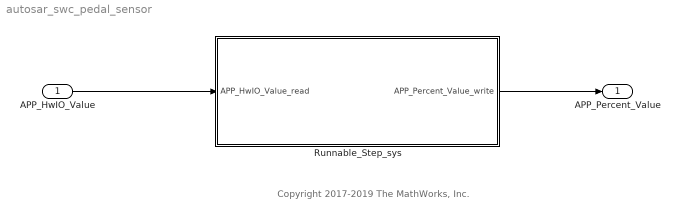
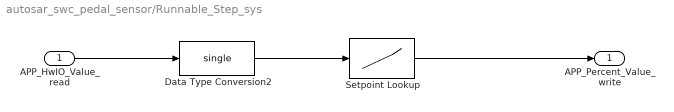
/*
 * File: autosar_swc_pedal_sensor.c
 *
 * Code generated for Simulink model 'autosar_swc_pedal_sensor'.
 *
 * Model version                  : 3.1
 * Simulink Coder version         : 9.5 (R2021a) 14-Nov-2020
 * C/C++ source code generated on : Thu Aug  7 15:22:16 2025
 *
 * Target selection: autosar.tlc
 * Embedded hardware selection: Intel->x86-64 (Windows64)
 * Code generation objectives: Unspecified
 * Validation result: Not run
 */

#include "autosar_swc_pedal_sensor.h"
#include "autosar_swc_pedal_sensor_private.h"

float32 look1_iflf_linlcpw(float32 u0, const float32 bp0[], const float32 table[],
  uint32 maxIndex)
{
  float32 frac;
  float32 yL_0d0;
  uint32 bpIdx;

  /* Column-major Lookup 1-D
     Search method: 'linear'
     Use previous index: 'off'
     Interpolation method: 'Linear point-slope'
     Extrapolation method: 'Clip'
     Use last breakpoint for index at or above upper limit: 'off'
     Remove protection against out-of-range input in generated code: 'off'
   */
  /* Prelookup - Index and Fraction
     Index Search method: 'linear'
     Extrapolation method: 'Clip'
     Use previous index: 'off'
     Use last breakpoint for index at or above upper limit: 'off'
     Remove protection against out-of-range input in generated code: 'off'
   */
  if (u0 <= bp0[0U]) {
    bpIdx = 0U;
    frac = 0.0F;
  } else if (u0 < bp0[maxIndex]) {
    /* Linear Search */
    for (bpIdx = maxIndex >> 1U; u0 < bp0[bpIdx]; bpIdx--) {
    }

    while (u0 >= bp0[bpIdx + 1U]) {
      bpIdx++;
    }

    frac = (u0 - bp0[bpIdx]) / (bp0[bpIdx + 1U] - bp0[bpIdx]);
  } else {
    bpIdx = maxIndex - 1U;
    frac = 1.0F;
  }

  /* Column-major Interpolation 1-D
     Interpolation method: 'Linear point-slope'
     Use last breakpoint for index at or above upper limit: 'off'
     Overflow mode: 'portable wrapping'
   */
  yL_0d0 = table[bpIdx];
  return (table[bpIdx + 1U] - yL_0d0) * frac + yL_0d0;
}

/* Model step function */
void Runnable_Step(void)
{
  /* Outputs for Atomic SubSystem: '<Root>/Runnable_Step_sys' */
  /* Outport: '<Root>/APP_Percent_Value' incorporates:
   *  DataTypeConversion: '<S1>/Data Type Conversion2'
   *  Inport: '<Root>/APP_HwIO_Value'
   *  Lookup_n-D: '<S1>/Setpoint Lookup'
   */
  Rte_IWrite_Runnable_Step_APP_Percent_Value(look1_iflf_linlcpw
    (Rte_IRead_Runnable_Step_APP_HwIO_Value(),
     (Rte_CData_SetpointPercent_LkupTbl())->BP1,
     (Rte_CData_SetpointPercent_LkupTbl())->Table, 10U));

  /* End of Outputs for SubSystem: '<Root>/Runnable_Step_sys' */
}
